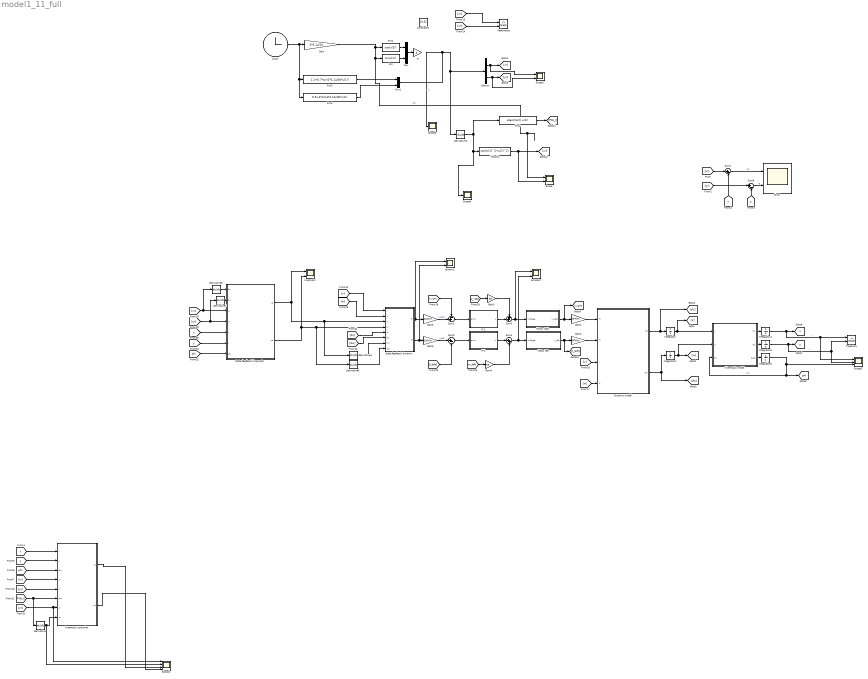
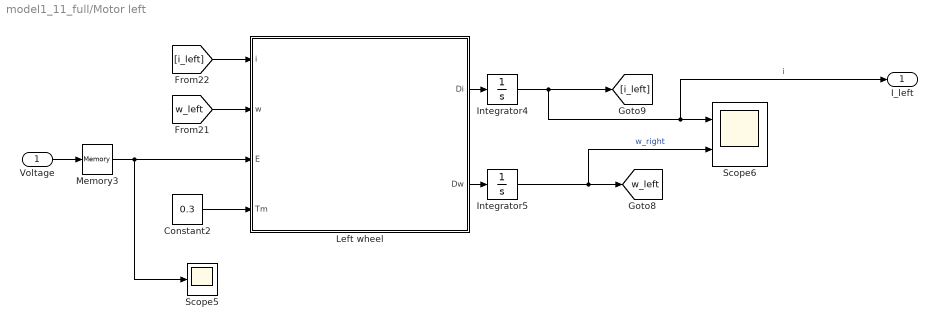
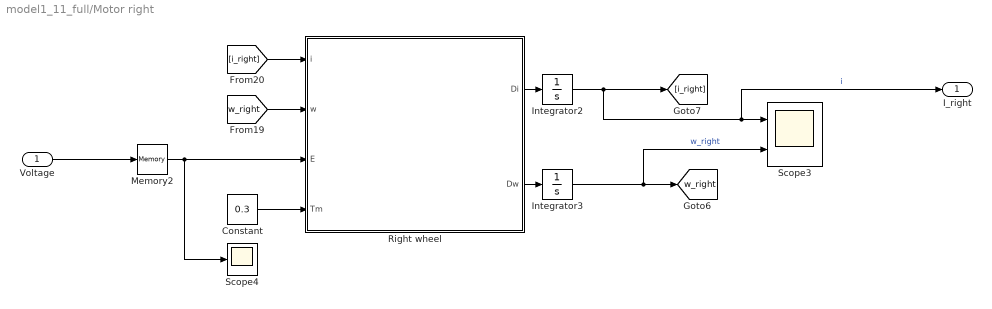
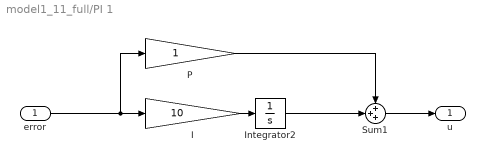
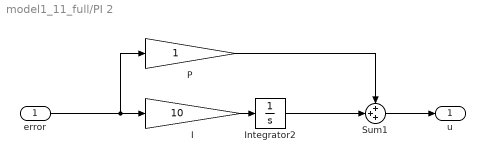
== matlab function model1_11_full/kinematic controller ==
function [vc,wc] = fcn(x,y,phi,xr,yr,phir,vr,wr)
Kx = 0.001; Ky = .01; Kphi = 0.0001;

xe = xr - x;
ye = yr - y;
phie = phir - phi;

vc = vr*cos(phie) + Kx*xe;
wc = wr + vr*(Ky*ye + Kphi*sin(phie));

== matlab function model1_11_full/Dynamic model ==
function [Dv,Dw] = fcn(Tr,Tl,v,w)
mc = 30; Ic = 15.625; R = 0.15; L = 0.375;
d = 0.3; Iw = 0.005; Im = 0.0025; mw = 1;


I = Ic + mc*d^2 + 2*mw*L^2 + 2*Im;
m = mc + 2*mw;

Dv = ((Tr+Tl)/R  + mc*d*w^2)/(m + 2*Iw/R^2);
Dw = ((Tr-Tl)*L/R- mc*d*w*v)/(I + 2*(L/R)^2*Iw);
end

== matlab function model1_11_full/Motor right/Right wheel ==
function [Di,Dw] = fcn(i,w,E,Tm,R, Ke, Km, J, f,L)
Di = (E-R*i-Ke*w)/L;
Dw = (Tm - f*w -Km*i)/J;
end

== matlab function model1_11_full/Motor left/Left wheel ==
function [Di,Dw] = fcn(i,w,E,Tm,R, Ke, Km, J, f,L)
Di = (E-R*i-Ke*w)/L;
Dw = (Tm - f*w -Km*i)/J;
end

== matlab function model1_11_full/Kinematic model ==
function [Dx,Dy,Dphi] = fcn(v,w,phi)

d = 0.3;
Dx = v*cos(phi) - d*w*sin(phi);
Dy = v*sin(phi) + d*w*cos(phi);
Dphi = w;
%{
Dx = v*cos(phi);
Dy = v*sin(phi);
Dphi = w;
%}
end

== matlab function model1_11_full/State feedback dynamic ==
function [Tr,Tl] = fcn(v,w,vr,wr,dv,dw,dvr,dwr)
mc = 30; Ic = 15.625; R = 0.15; L = 0.375;
d = 0.3; Iw = 0.005; Im = 0.0025; mw = 1;
I = Ic + mc*d^2 + 2*mw*L^2 + 2*Im;
m = mc + 2*mw;

Kv = 25; Kw = 25;

Ev = vr - v;
Ew = wr - w;

a = R  * ((dvr + Kv*Ev)*(m + 2*Iw/R^2)     - mc*d*w^2);
b = R/L* ((dwr + Kw*Ew)*(I + 2*L^2*Iw/R^2) + mc*d*w*v);

Tr = (a + b)/2;
Tl = (a - b)/2;
end

== matlab function model1_11_full/State feedback kinematic ==
function [vd,wd] = fcn(dxr,dyr,xr,yr,x,y,phi)
d = 0.3; Kx = 1; Ky = 1;

Ex = xr - x;
Ey = yr - y;

V = [cos(phi), sin(phi);...
    -sin(phi)/d, cos(phi)/d] *([dxr;dyr] + diag([Kx,Ky])*[Ex;Ey]);
vd = V(1);
wd = V(2);

end

/*
 * model1_11_full.c
 *
 * Code generation for model "model1_11_full".
 *
 * Model version              : 1.15
 * Simulink Coder version : 9.8 (R2022b) 13-May-2022
 * C source code generated on : Sat Feb 11 02:53:14 2023
 *
 * Target selection: grt.tlc
 * Note: GRT includes extra infrastructure and instrumentation for prototyping
 * Embedded hardware selection: Intel->x86-64 (Windows64)
 * Code generation objectives: Unspecified
 * Validation result: Not run
 */

#include "model1_11_full.h"
#include "rtwtypes.h"
#include "model1_11_full_private.h"
#include <math.h>
#include "rt_nonfinite.h"
#include "rt_defines.h"
#include <string.h>

/* Block signals (default storage) */
B_model1_11_full_T model1_11_full_B;

/* Continuous states */
X_model1_11_full_T model1_11_full_X;

/* Block states (default storage) */
DW_model1_11_full_T model1_11_full_DW;

/* Periodic continuous states */
PeriodicIndX_model1_11_full_T model1_11_full_PeriodicIndX;
PeriodicRngX_model1_11_full_T model1_11_full_PeriodicRngX;

/* Real-time model */
static RT_MODEL_model1_11_full_T model1_11_full_M_;
RT_MODEL_model1_11_full_T *const model1_11_full_M = &model1_11_full_M_;

/* State reduction function */
void local_stateReduction(real_T* x, int_T* p, int_T n, real_T* r)
{
  int_T i, j;
  for (i = 0, j = 0; i < n; ++i, ++j) {
    int_T k = p[i];
    real_T lb = r[j++];
    real_T xk = x[k]-lb;
    real_T rk = r[j]-lb;
    int_T q = (int_T) floor(xk/rk);
    if (q) {
      x[k] = xk-q*rk+lb;
    }
  }
}

/*
 * This function updates continuous states using the ODE3 fixed-step
 * solver algorithm
 */
static void rt_ertODEUpdateContinuousStates(RTWSolverInfo *si )
{
  /* Solver Matrices */
  static const real_T rt_ODE3_A[3] = {
    1.0/2.0, 3.0/4.0, 1.0
  };

  static const real_T rt_ODE3_B[3][3] = {
    { 1.0/2.0, 0.0, 0.0 },

    { 0.0, 3.0/4.0, 0.0 },

    { 2.0/9.0, 1.0/3.0, 4.0/9.0 }
  };

  time_T t = rtsiGetT(si);
  time_T tnew = rtsiGetSolverStopTime(si);
  time_T h = rtsiGetStepSize(si);
  real_T *x = rtsiGetContStates(si);
  ODE3_IntgData *id = (ODE3_IntgData *)rtsiGetSolverData(si);
  real_T *y = id->y;
  real_T *f0 = id->f[0];
  real_T *f1 = id->f[1];
  real_T *f2 = id->f[2];
  real_T hB[3];
  int_T i;
  int_T nXc = 11;
  rtsiSetSimTimeStep(si,MINOR_TIME_STEP);

  /* Save the state values at time t in y, we'll use x as ynew. */
  (void) memcpy(y, x,
                (uint_T)nXc*sizeof(real_T));

  /* Assumes that rtsiSetT and ModelOutputs are up-to-date */
  /* f0 = f(t,y) */
  rtsiSetdX(si, f0);
  model1_11_full_derivatives();

  /* f(:,2) = feval(odefile, t + hA(1), y + f*hB(:,1), args(:)(*)); */
  hB[0] = h * rt_ODE3_B[0][0];
  for (i = 0; i < nXc; i++) {
    x[i] = y[i] + (f0[i]*hB[0]);
  }

  rtsiSetT(si, t + h*rt_ODE3_A[0]);
  rtsiSetdX(si, f1);
  model1_11_full_step();
  model1_11_full_derivatives();

  /* f(:,3) = feval(odefile, t + hA(2), y + f*hB(:,2), args(:)(*)); */
  for (i = 0; i <= 1; i++) {
    hB[i] = h * rt_ODE3_B[1][i];
  }

  for (i = 0; i < nXc; i++) {
    x[i] = y[i] + (f0[i]*hB[0] + f1[i]*hB[1]);
  }

  rtsiSetT(si, t + h*rt_ODE3_A[1]);
  rtsiSetdX(si, f2);
  model1_11_full_step();
  model1_11_full_derivatives();

  /* tnew = t + hA(3);
     ynew = y + f*hB(:,3); */
  for (i = 0; i <= 2; i++) {
    hB[i] = h * rt_ODE3_B[2][i];
  }

  for (i = 0; i < nXc; i++) {
    x[i] = y[i] + (f0[i]*hB[0] + f1[i]*hB[1] + f2[i]*hB[2]);
  }

  rtsiSetT(si, tnew);
  local_stateReduction(rtsiGetContStates(si), rtsiGetPeriodicContStateIndices(si),
                       1,
                       rtsiGetPeriodicContStateRanges(si));
  rtsiSetSimTimeStep(si,MAJOR_TIME_STEP);
}

/*
 * Output and update for atomic system:
 *    '<S3>/Left wheel'
 *    '<S4>/Right wheel'
 */
void model1_11_full_Leftwheel(real_T rtu_i, real_T rtu_w, real_T rtu_E, real_T
  rtu_Tm, B_Leftwheel_model1_11_full_T *localB)
{
  localB->Di = ((rtu_E - model1_11_full_P.R * rtu_i) - model1_11_full_P.Ke *
                rtu_w) / model1_11_full_P.L;
  localB->Dw = ((rtu_Tm - model1_11_full_P.f * rtu_w) - model1_11_full_P.Km *
                rtu_i) / model1_11_full_P.J;
}

real_T rt_powd_snf(real_T u0, real_T u1)
{
  real_T y;
  if (rtIsNaN(u0) || rtIsNaN(u1)) {
    y = (rtNaN);
  } else {
    real_T tmp;
    real_T tmp_0;
    tmp = fabs(u0);
    tmp_0 = fabs(u1);
    if (rtIsInf(u1)) {
      if (tmp == 1.0) {
        y = 1.0;
      } else if (tmp > 1.0) {
        if (u1 > 0.0) {
          y = (rtInf);
        } else {
          y = 0.0;
        }
      } else if (u1 > 0.0) {
        y = 0.0;
      } else {
        y = (rtInf);
      }
    } else if (tmp_0 == 0.0) {
      y = 1.0;
    } else if (tmp_0 == 1.0) {
      if (u1 > 0.0) {
        y = u0;
      } else {
        y = 1.0 / u0;
      }
    } else if (u1 == 2.0) {
      y = u0 * u0;
    } else if ((u1 == 0.5) && (u0 >= 0.0)) {
      y = sqrt(u0);
    } else if ((u0 < 0.0) && (u1 > floor(u1))) {
      y = (rtNaN);
    } else {
      y = pow(u0, u1);
    }
  }

  return y;
}

real_T rt_atan2d_snf(real_T u0, real_T u1)
{
  real_T y;
  if (rtIsNaN(u0) || rtIsNaN(u1)) {
    y = (rtNaN);
  } else if (rtIsInf(u0) && rtIsInf(u1)) {
    int32_T tmp;
    int32_T tmp_0;
    if (u0 > 0.0) {
      tmp = 1;
    } else {
      tmp = -1;
    }

    if (u1 > 0.0) {
      tmp_0 = 1;
    } else {
      tmp_0 = -1;
    }

    y = atan2(tmp, tmp_0);
  } else if (u1 == 0.0) {
    if (u0 > 0.0) {
      y = RT_PI / 2.0;
    } else if (u0 < 0.0) {
      y = -(RT_PI / 2.0);
    } else {
      y = 0.0;
    }
  } else {
    y = atan2(u0, u1);
  }

  return y;
}

/* Model step function */
void model1_11_full_step(void)
{
  if (rtmIsMajorTimeStep(model1_11_full_M)) {
    /* set solver stop time */
    if (!(model1_11_full_M->Timing.clockTick0+1)) {
      rtsiSetSolverStopTime(&model1_11_full_M->solverInfo,
                            ((model1_11_full_M->Timing.clockTickH0 + 1) *
        model1_11_full_M->Timing.stepSize0 * 4294967296.0));
    } else {
      rtsiSetSolverStopTime(&model1_11_full_M->solverInfo,
                            ((model1_11_full_M->Timing.clockTick0 + 1) *
        model1_11_full_M->Timing.stepSize0 +
        model1_11_full_M->Timing.clockTickH0 *
        model1_11_full_M->Timing.stepSize0 * 4294967296.0));
    }
  }                                    /* end MajorTimeStep */

  /* Update absolute time of base rate at minor time step */
  if (rtmIsMinorTimeStep(model1_11_full_M)) {
    model1_11_full_M->Timing.t[0] = rtsiGetT(&model1_11_full_M->solverInfo);
  }

  {
    real_T (*lastU)[2];
    real_T V_tmp;
    real_T Xe_tmp;
    real_T Ye_tmp;
    real_T phie;
    real_T rtb_Derivative5;
    real_T rtb_Derivative6;
    real_T rtb_Derivative7;
    real_T *lastU_0;

    /* Clock: '<Root>/Clock' incorporates:
     *  Derivative: '<Root>/Derivative'
     *  Derivative: '<Root>/Derivative1'
     *  Derivative: '<Root>/Derivative4'
     *  Derivative: '<Root>/Derivative5'
     *  Derivative: '<Root>/Derivative6'
     *  Derivative: '<Root>/Derivative7'
     */
    rtb_Derivative5 = model1_11_full_M->Timing.t[0];

    /* Fcn: '<Root>/Fcn2' incorporates:
     *  Clock: '<Root>/Clock'
     */
    model1_11_full_B.Fcn2 = sin(0.20933333333333334 * rtb_Derivative5) * 0.7 +
      1.1;

    /* Integrator: '<Root>/Integrator4' */
    model1_11_full_B.x = model1_11_full_X.x;

    /* Sum: '<Root>/Sum1' incorporates:
     *  MATLAB Function: '<Root>/State feedback kinematic'
     *  MATLAB Function: '<Root>/kinematic controller'
     */
    Xe_tmp = model1_11_full_B.Fcn2 - model1_11_full_B.x;

    /* Sum: '<Root>/Sum1' */
    model1_11_full_B.Xe = Xe_tmp;

    /* Fcn: '<Root>/Fcn3' incorporates:
     *  Clock: '<Root>/Clock'
     */
    model1_11_full_B.Fcn3 = sin(0.41866666666666669 * rtb_Derivative5) * 2.0 +
      0.9;

    /* Integrator: '<Root>/Integrator5' */
    model1_11_full_B.y = model1_11_full_X.y;

    /* Sum: '<Root>/Sum6' incorporates:
     *  MATLAB Function: '<Root>/State feedback kinematic'
     *  MATLAB Function: '<Root>/kinematic controller'
     */
    Ye_tmp = model1_11_full_B.Fcn3 - model1_11_full_B.y;

    /* Sum: '<Root>/Sum6' */
    model1_11_full_B.Ye = Ye_tmp;
    if (rtmIsMajorTimeStep(model1_11_full_M)) {
    }

    /* Gain: '<Root>/Gain' incorporates:
     *  Clock: '<Root>/Clock'
     */
    model1_11_full_B.phi = model1_11_full_P.Gain_Gain * rtb_Derivative5;

    /* Derivative: '<Root>/Derivative1' */
    if ((model1_11_full_DW.TimeStampA >= rtb_Derivative5) &&
        (model1_11_full_DW.TimeStampB >= rtb_Derivative5)) {
      /* Derivative: '<Root>/Derivative1' */
      model1_11_full_B.Derivative1[0] = 0.0;
      model1_11_full_B.Derivative1[1] = 0.0;
    } else {
      rtb_Derivative7 = model1_11_full_DW.TimeStampA;
      lastU = &model1_11_full_DW.LastUAtTimeA;
      if (model1_11_full_DW.TimeStampA < model1_11_full_DW.TimeStampB) {
        if (model1_11_full_DW.TimeStampB < rtb_Derivative5) {
          rtb_Derivative7 = model1_11_full_DW.TimeStampB;
          lastU = &model1_11_full_DW.LastUAtTimeB;
        }
      } else if (model1_11_full_DW.TimeStampA >= rtb_Derivative5) {
        rtb_Derivative7 = model1_11_full_DW.TimeStampB;
        lastU = &model1_11_full_DW.LastUAtTimeB;
      }

      phie = rtb_Derivative5 - rtb_Derivative7;

      /* Derivative: '<Root>/Derivative1' */
      model1_11_full_B.Derivative1[0] = (model1_11_full_B.Fcn2 - (*lastU)[0]) /
        phie;
      model1_11_full_B.Derivative1[1] = (model1_11_full_B.Fcn3 - (*lastU)[1]) /
        phie;
    }

    /* Fcn: '<Root>/Velocity' */
    model1_11_full_B.Velocity = sqrt(rt_powd_snf(model1_11_full_B.Derivative1[0],
      2.0) + rt_powd_snf(model1_11_full_B.Derivative1[1], 2.0));
    if (rtmIsMajorTimeStep(model1_11_full_M)) {
    }

    /* Fcn: '<Root>/Fcn4' */
    model1_11_full_B.Fcn4 = rt_atan2d_snf(model1_11_full_B.Derivative1[1],
      model1_11_full_B.Derivative1[0]);

    /* Derivative: '<Root>/Derivative' */
    if ((model1_11_full_DW.TimeStampA_m >= rtb_Derivative5) &&
        (model1_11_full_DW.TimeStampB_d >= rtb_Derivative5)) {
      /* Derivative: '<Root>/Derivative' */
      model1_11_full_B.Derivative = 0.0;
    } else {
      rtb_Derivative7 = model1_11_full_DW.TimeStampA_m;
      lastU_0 = &model1_11_full_DW.LastUAtTimeA_h;
      if (model1_11_full_DW.TimeStampA_m < model1_11_full_DW.TimeStampB_d) {
        if (model1_11_full_DW.TimeStampB_d < rtb_Derivative5) {
          rtb_Derivative7 = model1_11_full_DW.TimeStampB_d;
          lastU_0 = &model1_11_full_DW.LastUAtTimeB_n;
        }
      } else if (model1_11_full_DW.TimeStampA_m >= rtb_Derivative5) {
        rtb_Derivative7 = model1_11_full_DW.TimeStampB_d;
        lastU_0 = &model1_11_full_DW.LastUAtTimeB_n;
      }

      /* Derivative: '<Root>/Derivative' */
      model1_11_full_B.Derivative = (model1_11_full_B.Fcn4 - *lastU_0) /
        (rtb_Derivative5 - rtb_Derivative7);
    }

    /* Integrator: '<Root>/Integrator6' */
    model1_11_full_B.phi_m = model1_11_full_X.Integrator6_CSTATE;

    /* MATLAB Function: '<Root>/kinematic controller' */
    phie = model1_11_full_B.Fcn4 - model1_11_full_B.phi_m;
    model1_11_full_B.vc = Xe_tmp * 0.001 + model1_11_full_B.Velocity * cos(phie);
    model1_11_full_B.wc = (Ye_tmp * 0.01 + 0.0001 * sin(phie)) *
      model1_11_full_B.Velocity + model1_11_full_B.Derivative;
    if (rtmIsMajorTimeStep(model1_11_full_M)) {
    }

    /* Integrator: '<S4>/Integrator3' */
    model1_11_full_B.w_right = model1_11_full_X.Integrator3_CSTATE;

    /* Integrator: '<S4>/Integrator2' */
    model1_11_full_B.i = model1_11_full_X.Integrator2_CSTATE;

    /* Derivative: '<Root>/Derivative6' */
    if ((model1_11_full_DW.TimeStampA_p >= rtb_Derivative5) &&
        (model1_11_full_DW.TimeStampB_b >= rtb_Derivative5)) {
      rtb_Derivative6 = 0.0;
    } else {
      rtb_Derivative7 = model1_11_full_DW.TimeStampA_p;
      lastU_0 = &model1_11_full_DW.LastUAtTimeA_d;
      if (model1_11_full_DW.TimeStampA_p < model1_11_full_DW.TimeStampB_b) {
        if (model1_11_full_DW.TimeStampB_b < rtb_Derivative5) {
          rtb_Derivative7 = model1_11_full_DW.TimeStampB_b;
          lastU_0 = &model1_11_full_DW.LastUAtTimeB_o;
        }
      } else if (model1_11_full_DW.TimeStampA_p >= rtb_Derivative5) {
        rtb_Derivative7 = model1_11_full_DW.TimeStampB_b;
        lastU_0 = &model1_11_full_DW.LastUAtTimeB_o;
      }

      rtb_Derivative6 = (model1_11_full_B.Fcn2 - *lastU_0) / (rtb_Derivative5 -
        rtb_Derivative7);
    }

    /* Derivative: '<Root>/Derivative7' */
    if ((model1_11_full_DW.TimeStampA_k >= rtb_Derivative5) &&
        (model1_11_full_DW.TimeStampB_bd >= rtb_Derivative5)) {
      rtb_Derivative7 = 0.0;
    } else {
      rtb_Derivative7 = model1_11_full_DW.TimeStampA_k;
      lastU_0 = &model1_11_full_DW.LastUAtTimeA_m;
      if (model1_11_full_DW.TimeStampA_k < model1_11_full_DW.TimeStampB_bd) {
        if (model1_11_full_DW.TimeStampB_bd < rtb_Derivative5) {
          rtb_Derivative7 = model1_11_full_DW.TimeStampB_bd;
          lastU_0 = &model1_11_full_DW.LastUAtTimeB_a;
        }
      } else if (model1_11_full_DW.TimeStampA_k >= rtb_Derivative5) {
        rtb_Derivative7 = model1_11_full_DW.TimeStampB_bd;
        lastU_0 = &model1_11_full_DW.LastUAtTimeB_a;
      }

      rtb_Derivative7 = (model1_11_full_B.Fcn3 - *lastU_0) / (rtb_Derivative5 -
        rtb_Derivative7);
    }

    /* MATLAB Function: '<Root>/State feedback kinematic' incorporates:
     *  MATLAB Function: '<Root>/Kinematic model'
     */
    phie = sin(model1_11_full_B.phi_m);
    V_tmp = cos(model1_11_full_B.phi_m);
    rtb_Derivative6 += 0.0 * Ye_tmp + Xe_tmp;
    rtb_Derivative7 += 0.0 * Xe_tmp + Ye_tmp;
    model1_11_full_B.vd = V_tmp * rtb_Derivative6 + phie * rtb_Derivative7;
    model1_11_full_B.wd = -phie / 0.3 * rtb_Derivative6 + V_tmp / 0.3 *
      rtb_Derivative7;

    /* Gain: '<Root>/Gain1' incorporates:
     *  Gain: '<Root>/Gain2'
     */
    rtb_Derivative6 = model1_11_full_P.N * model1_11_full_P.Km;
    rtb_Derivative7 = rtb_Derivative6 * model1_11_full_B.i;

    /* Integrator: '<S3>/Integrator4' */
    model1_11_full_B.i_h = model1_11_full_X.Integrator4_CSTATE;

    /* Gain: '<Root>/Gain2' */
    rtb_Derivative6 *= model1_11_full_B.i_h;

    /* MATLAB Function: '<Root>/Dynamic model' incorporates:
     *  Integrator: '<Root>/Integrator'
     *  Integrator: '<Root>/Integrator1'
     *  MATLAB Function: '<Root>/State feedback dynamic'
     */
    Xe_tmp = model1_11_full_X.Integrator1_CSTATE *
      model1_11_full_X.Integrator1_CSTATE * 9.0;
    model1_11_full_B.Dv = ((rtb_Derivative7 + rtb_Derivative6) / 0.15 + Xe_tmp) /
      32.444444444444443;
    Ye_tmp = 9.0 * model1_11_full_X.Integrator1_CSTATE *
      model1_11_full_X.Integrator_CSTATE;
    model1_11_full_B.Dw = ((rtb_Derivative7 - rtb_Derivative6) * 0.375 / 0.15 -
      Ye_tmp) / 18.67375;

    /* Derivative: '<Root>/Derivative4' */
    if ((model1_11_full_DW.TimeStampA_l >= rtb_Derivative5) &&
        (model1_11_full_DW.TimeStampB_bi >= rtb_Derivative5)) {
      rtb_Derivative6 = 0.0;
    } else {
      rtb_Derivative7 = model1_11_full_DW.TimeStampA_l;
      lastU_0 = &model1_11_full_DW.LastUAtTimeA_b;
      if (model1_11_full_DW.TimeStampA_l < model1_11_full_DW.TimeStampB_bi) {
        if (model1_11_full_DW.TimeStampB_bi < rtb_Derivative5) {
          rtb_Derivative7 = model1_11_full_DW.TimeStampB_bi;
          lastU_0 = &model1_11_full_DW.LastUAtTimeB_m;
        }
      } else if (model1_11_full_DW.TimeStampA_l >= rtb_Derivative5) {
        rtb_Derivative7 = model1_11_full_DW.TimeStampB_bi;
        lastU_0 = &model1_11_full_DW.LastUAtTimeB_m;
      }

      rtb_Derivative6 = (model1_11_full_B.vd - *lastU_0) / (rtb_Derivative5 -
        rtb_Derivative7);
    }

    /* Derivative: '<Root>/Derivative5' */
    if ((model1_11_full_DW.TimeStampA_kh >= rtb_Derivative5) &&
        (model1_11_full_DW.TimeStampB_g >= rtb_Derivative5)) {
      rtb_Derivative5 = 0.0;
    } else {
      rtb_Derivative7 = model1_11_full_DW.TimeStampA_kh;
      lastU_0 = &model1_11_full_DW.LastUAtTimeA_g;
      if (model1_11_full_DW.TimeStampA_kh < model1_11_full_DW.TimeStampB_g) {
        if (model1_11_full_DW.TimeStampB_g < rtb_Derivative5) {
          rtb_Derivative7 = model1_11_full_DW.TimeStampB_g;
          lastU_0 = &model1_11_full_DW.LastUAtTimeB_i;
        }
      } else if (model1_11_full_DW.TimeStampA_kh >= rtb_Derivative5) {
        rtb_Derivative7 = model1_11_full_DW.TimeStampB_g;
        lastU_0 = &model1_11_full_DW.LastUAtTimeB_i;
      }

      rtb_Derivative5 = (model1_11_full_B.wd - *lastU_0) / (rtb_Derivative5 -
        rtb_Derivative7);
    }

    /* MATLAB Function: '<Root>/State feedback dynamic' incorporates:
     *  Integrator: '<Root>/Integrator'
     *  Integrator: '<Root>/Integrator1'
     */
    rtb_Derivative7 = (((model1_11_full_B.vd -
                         model1_11_full_X.Integrator_CSTATE) * 25.0 +
                        rtb_Derivative6) * 32.444444444444443 - Xe_tmp) * 0.15;
    rtb_Derivative5 = (((model1_11_full_B.wd -
                         model1_11_full_X.Integrator1_CSTATE) * 25.0 +
                        rtb_Derivative5) * 18.67375 + Ye_tmp) *
      0.39999999999999997;
    model1_11_full_B.Tr = (rtb_Derivative7 + rtb_Derivative5) / 2.0;
    model1_11_full_B.Tl = (rtb_Derivative7 - rtb_Derivative5) / 2.0;

    /* Gain: '<Root>/Gain5' incorporates:
     *  Gain: '<Root>/Gain6'
     */
    rtb_Derivative7 = 1.0 / model1_11_full_P.N / model1_11_full_P.Km;

    /* Sum: '<Root>/Sum2' incorporates:
     *  Gain: '<Root>/Gain5'
     */
    rtb_Derivative5 = rtb_Derivative7 * model1_11_full_B.Tr - model1_11_full_B.i;

    /* Sum: '<Root>/Sum3' incorporates:
     *  Gain: '<Root>/Gain3'
     *  Gain: '<S5>/P'
     *  Integrator: '<S5>/Integrator2'
     *  Sum: '<S5>/Sum1'
     */
    model1_11_full_B.Sum3 = (model1_11_full_P.P_Gain * rtb_Derivative5 +
      model1_11_full_X.Integrator2_CSTATE_i) + model1_11_full_P.Ke *
      model1_11_full_B.w_right;

    /* Sum: '<Root>/Sum5' incorporates:
     *  Gain: '<Root>/Gain6'
     */
    rtb_Derivative7 = rtb_Derivative7 * model1_11_full_B.Tl -
      model1_11_full_B.i_h;

    /* Integrator: '<S3>/Integrator5' */
    model1_11_full_B.w_right_l = model1_11_full_X.Integrator5_CSTATE;

    /* Sum: '<Root>/Sum4' incorporates:
     *  Gain: '<Root>/Gain4'
     *  Gain: '<S6>/P'
     *  Integrator: '<S6>/Integrator2'
     *  Sum: '<S6>/Sum1'
     */
    model1_11_full_B.Sum4 = (model1_11_full_P.P_Gain_g * rtb_Derivative7 +
      model1_11_full_X.Integrator2_CSTATE_o) + model1_11_full_P.Ke *
      model1_11_full_B.w_right_l;
    if (rtmIsMajorTimeStep(model1_11_full_M)) {
    }

    /* MATLAB Function: '<Root>/Kinematic model' incorporates:
     *  Integrator: '<Root>/Integrator'
     *  Integrator: '<Root>/Integrator1'
     */
    model1_11_full_B.Dx = model1_11_full_X.Integrator_CSTATE * V_tmp - 0.3 *
      model1_11_full_X.Integrator1_CSTATE * phie;
    model1_11_full_B.Dy = 0.3 * model1_11_full_X.Integrator1_CSTATE * V_tmp +
      model1_11_full_X.Integrator_CSTATE * phie;
    model1_11_full_B.Dphi = model1_11_full_X.Integrator1_CSTATE;
    if (rtmIsMajorTimeStep(model1_11_full_M)) {
      /* Memory: '<S3>/Memory3' */
      model1_11_full_B.Memory3 = model1_11_full_DW.Memory3_PreviousInput;
    }

    /* MATLAB Function: '<S3>/Left wheel' incorporates:
     *  Constant: '<S3>/Constant2'
     */
    model1_11_full_Leftwheel(model1_11_full_B.i_h, model1_11_full_B.w_right_l,
      model1_11_full_B.Memory3, model1_11_full_P.Constant2_Value,
      &model1_11_full_B.sf_Leftwheel);
    if (rtmIsMajorTimeStep(model1_11_full_M)) {
      /* Memory: '<S4>/Memory2' */
      model1_11_full_B.Memory2 = model1_11_full_DW.Memory2_PreviousInput;
    }

    /* MATLAB Function: '<S4>/Right wheel' incorporates:
     *  Constant: '<S4>/Constant'
     */
    model1_11_full_Leftwheel(model1_11_full_B.i, model1_11_full_B.w_right,
      model1_11_full_B.Memory2, model1_11_full_P.Constant_Value,
      &model1_11_full_B.sf_Rightwheel);

    /* Gain: '<S5>/I' */
    model1_11_full_B.I = model1_11_full_P.I_Gain * rtb_Derivative5;

    /* Gain: '<S6>/I' */
    model1_11_full_B.I_l = model1_11_full_P.I_Gain_n * rtb_Derivative7;
  }

  if (rtmIsMajorTimeStep(model1_11_full_M)) {
    /* Matfile logging */
    rt_UpdateTXYLogVars(model1_11_full_M->rtwLogInfo,
                        (model1_11_full_M->Timing.t));
  }                                    /* end MajorTimeStep */

  if (rtmIsMajorTimeStep(model1_11_full_M)) {
    real_T (*lastU)[2];
    real_T *lastU_0;

    /* Update for Derivative: '<Root>/Derivative1' */
    if (model1_11_full_DW.TimeStampA == (rtInf)) {
      model1_11_full_DW.TimeStampA = model1_11_full_M->Timing.t[0];
      lastU = &model1_11_full_DW.LastUAtTimeA;
    } else if (model1_11_full_DW.TimeStampB == (rtInf)) {
      model1_11_full_DW.TimeStampB = model1_11_full_M->Timing.t[0];
      lastU = &model1_11_full_DW.LastUAtTimeB;
    } else if (model1_11_full_DW.TimeStampA < model1_11_full_DW.TimeStampB) {
      model1_11_full_DW.TimeStampA = model1_11_full_M->Timing.t[0];
      lastU = &model1_11_full_DW.LastUAtTimeA;
    } else {
      model1_11_full_DW.TimeStampB = model1_11_full_M->Timing.t[0];
      lastU = &model1_11_full_DW.LastUAtTimeB;
    }

    (*lastU)[0] = model1_11_full_B.Fcn2;
    (*lastU)[1] = model1_11_full_B.Fcn3;

    /* End of Update for Derivative: '<Root>/Derivative1' */

    /* Update for Derivative: '<Root>/Derivative' */
    if (model1_11_full_DW.TimeStampA_m == (rtInf)) {
      model1_11_full_DW.TimeStampA_m = model1_11_full_M->Timing.t[0];
      lastU_0 = &model1_11_full_DW.LastUAtTimeA_h;
    } else if (model1_11_full_DW.TimeStampB_d == (rtInf)) {
      model1_11_full_DW.TimeStampB_d = model1_11_full_M->Timing.t[0];
      lastU_0 = &model1_11_full_DW.LastUAtTimeB_n;
    } else if (model1_11_full_DW.TimeStampA_m < model1_11_full_DW.TimeStampB_d)
    {
      model1_11_full_DW.TimeStampA_m = model1_11_full_M->Timing.t[0];
      lastU_0 = &model1_11_full_DW.LastUAtTimeA_h;
    } else {
      model1_11_full_DW.TimeStampB_d = model1_11_full_M->Timing.t[0];
      lastU_0 = &model1_11_full_DW.LastUAtTimeB_n;
    }

    *lastU_0 = model1_11_full_B.Fcn4;

    /* End of Update for Derivative: '<Root>/Derivative' */

    /* Update for Derivative: '<Root>/Derivative6' */
    if (model1_11_full_DW.TimeStampA_p == (rtInf)) {
      model1_11_full_DW.TimeStampA_p = model1_11_full_M->Timing.t[0];
      lastU_0 = &model1_11_full_DW.LastUAtTimeA_d;
    } else if (model1_11_full_DW.TimeStampB_b == (rtInf)) {
      model1_11_full_DW.TimeStampB_b = model1_11_full_M->Timing.t[0];
      lastU_0 = &model1_11_full_DW.LastUAtTimeB_o;
    } else if (model1_11_full_DW.TimeStampA_p < model1_11_full_DW.TimeStampB_b)
    {
      model1_11_full_DW.TimeStampA_p = model1_11_full_M->Timing.t[0];
      lastU_0 = &model1_11_full_DW.LastUAtTimeA_d;
    } else {
      model1_11_full_DW.TimeStampB_b = model1_11_full_M->Timing.t[0];
      lastU_0 = &model1_11_full_DW.LastUAtTimeB_o;
    }

    *lastU_0 = model1_11_full_B.Fcn2;

    /* End of Update for Derivative: '<Root>/Derivative6' */

    /* Update for Derivative: '<Root>/Derivative7' */
    if (model1_11_full_DW.TimeStampA_k == (rtInf)) {
      model1_11_full_DW.TimeStampA_k = model1_11_full_M->Timing.t[0];
      lastU_0 = &model1_11_full_DW.LastUAtTimeA_m;
    } else if (model1_11_full_DW.TimeStampB_bd == (rtInf)) {
      model1_11_full_DW.TimeStampB_bd = model1_11_full_M->Timing.t[0];
      lastU_0 = &model1_11_full_DW.LastUAtTimeB_a;
    } else if (model1_11_full_DW.TimeStampA_k < model1_11_full_DW.TimeStampB_bd)
    {
      model1_11_full_DW.TimeStampA_k = model1_11_full_M->Timing.t[0];
      lastU_0 = &model1_11_full_DW.LastUAtTimeA_m;
    } else {
      model1_11_full_DW.TimeStampB_bd = model1_11_full_M->Timing.t[0];
      lastU_0 = &model1_11_full_DW.LastUAtTimeB_a;
    }

    *lastU_0 = model1_11_full_B.Fcn3;

    /* End of Update for Derivative: '<Root>/Derivative7' */

    /* Update for Derivative: '<Root>/Derivative4' */
    if (model1_11_full_DW.TimeStampA_l == (rtInf)) {
      model1_11_full_DW.TimeStampA_l = model1_11_full_M->Timing.t[0];
      lastU_0 = &model1_11_full_DW.LastUAtTimeA_b;
    } else if (model1_11_full_DW.TimeStampB_bi == (rtInf)) {
      model1_11_full_DW.TimeStampB_bi = model1_11_full_M->Timing.t[0];
      lastU_0 = &model1_11_full_DW.LastUAtTimeB_m;
    } else if (model1_11_full_DW.TimeStampA_l < model1_11_full_DW.TimeStampB_bi)
    {
      model1_11_full_DW.TimeStampA_l = model1_11_full_M->Timing.t[0];
      lastU_0 = &model1_11_full_DW.LastUAtTimeA_b;
    } else {
      model1_11_full_DW.TimeStampB_bi = model1_11_full_M->Timing.t[0];
      lastU_0 = &model1_11_full_DW.LastUAtTimeB_m;
    }

    *lastU_0 = model1_11_full_B.vd;

    /* End of Update for Derivative: '<Root>/Derivative4' */

    /* Update for Derivative: '<Root>/Derivative5' */
    if (model1_11_full_DW.TimeStampA_kh == (rtInf)) {
      model1_11_full_DW.TimeStampA_kh = model1_11_full_M->Timing.t[0];
      lastU_0 = &model1_11_full_DW.LastUAtTimeA_g;
    } else if (model1_11_full_DW.TimeStampB_g == (rtInf)) {
      model1_11_full_DW.TimeStampB_g = model1_11_full_M->Timing.t[0];
      lastU_0 = &model1_11_full_DW.LastUAtTimeB_i;
    } else if (model1_11_full_DW.TimeStampA_kh < model1_11_full_DW.TimeStampB_g)
    {
      model1_11_full_DW.TimeStampA_kh = model1_11_full_M->Timing.t[0];
      lastU_0 = &model1_11_full_DW.LastUAtTimeA_g;
    } else {
      model1_11_full_DW.TimeStampB_g = model1_11_full_M->Timing.t[0];
      lastU_0 = &model1_11_full_DW.LastUAtTimeB_i;
    }

    *lastU_0 = model1_11_full_B.wd;

    /* End of Update for Derivative: '<Root>/Derivative5' */
    if (rtmIsMajorTimeStep(model1_11_full_M)) {
      /* Update for Memory: '<S3>/Memory3' */
      model1_11_full_DW.Memory3_PreviousInput = model1_11_full_B.Sum4;

      /* Update for Memory: '<S4>/Memory2' */
      model1_11_full_DW.Memory2_PreviousInput = model1_11_full_B.Sum3;
    }
  }                                    /* end MajorTimeStep */

  if (rtmIsMajorTimeStep(model1_11_full_M)) {
    /* signal main to stop simulation */
    {                                  /* Sample time: [0.0s, 0.0s] */
      if ((rtmGetTFinal(model1_11_full_M)!=-1) &&
          !((rtmGetTFinal(model1_11_full_M)-
             (((model1_11_full_M->Timing.clockTick1+
                model1_11_full_M->Timing.clockTickH1* 4294967296.0)) * 0.01)) >
            (((model1_11_full_M->Timing.clockTick1+
               model1_11_full_M->Timing.clockTickH1* 4294967296.0)) * 0.01) *
            (DBL_EPSILON))) {
        rtmSetErrorStatus(model1_11_full_M, "Simulation finished");
      }
    }

    rt_ertODEUpdateContinuousStates(&model1_11_full_M->solverInfo);

    /* Update absolute time for base rate */
    /* The "clockTick0" counts the number of times the code of this task has
     * been executed. The absolute time is the multiplication of "clockTick0"
     * and "Timing.stepSize0". Size of "clockTick0" ensures timer will not
     * overflow during the application lifespan selected.
     * Timer of this task consists of two 32 bit unsigned integers.
     * The two integers represent the low bits Timing.clockTick0 and the high bits
     * Timing.clockTickH0. When the low bit overflows to 0, the high bits increment.
     */
    if (!(++model1_11_full_M->Timing.clockTick0)) {
      ++model1_11_full_M->Timing.clockTickH0;
    }

    model1_11_full_M->Timing.t[0] = rtsiGetSolverStopTime
      (&model1_11_full_M->solverInfo);

    {
      /* Update absolute timer for sample time: [0.01s, 0.0s] */
      /* The "clockTick1" counts the number of times the code of this task has
       * been executed. The resolution of this integer timer is 0.01, which is the step size
       * of the task. Size of "clockTick1" ensures timer will not overflow during the
       * application lifespan selected.
       * Timer of this task consists of two 32 bit unsigned integers.
       * The two integers represent the low bits Timing.clockTick1 and the high bits
       * Timing.clockTickH1. When the low bit overflows to 0, the high bits increment.
       */
      model1_11_full_M->Timing.clockTick1++;
      if (!model1_11_full_M->Timing.clockTick1) {
        model1_11_full_M->Timing.clockTickH1++;
      }
    }
  }                                    /* end MajorTimeStep */
}
